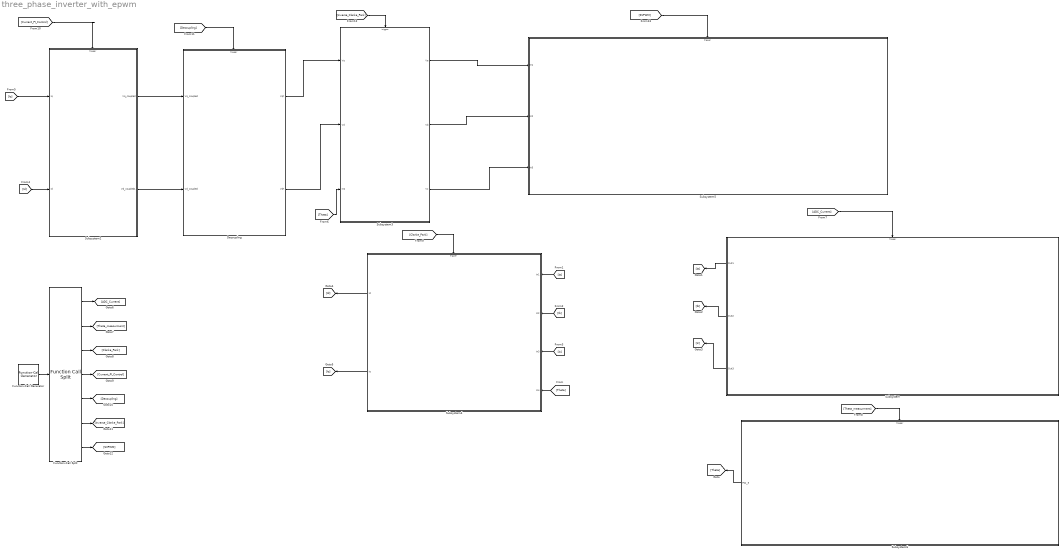
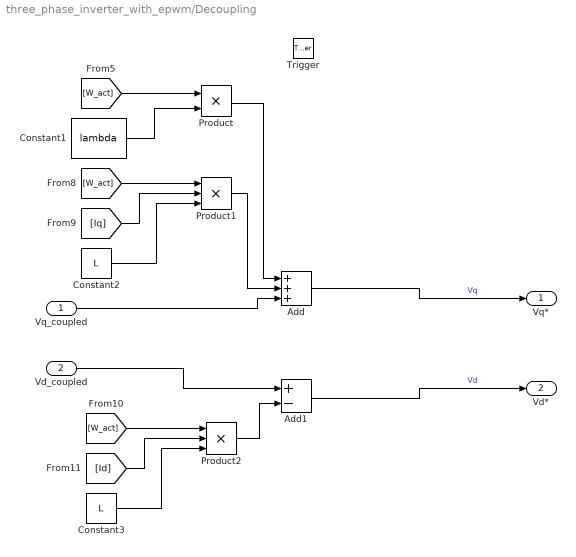
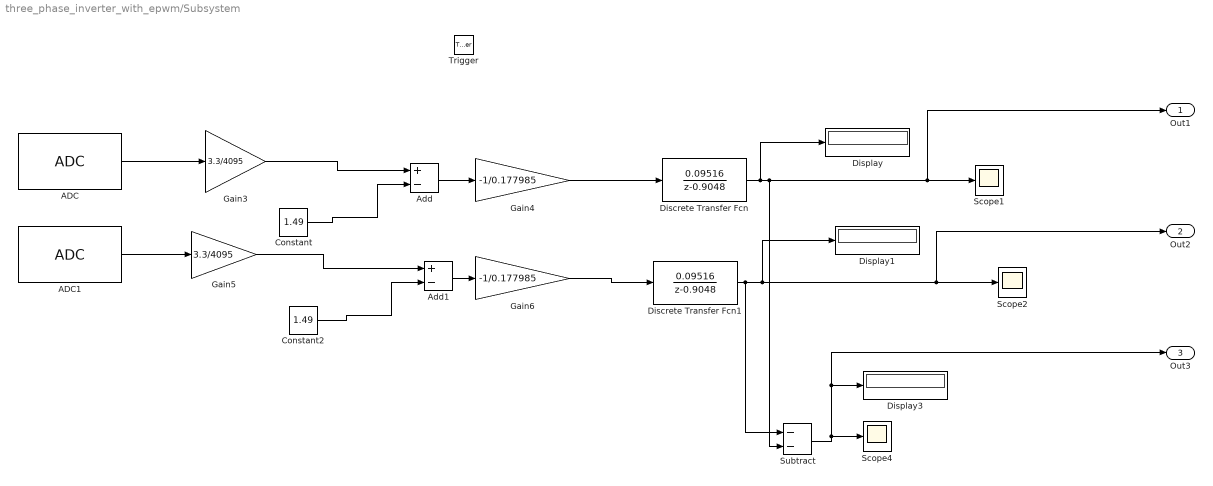
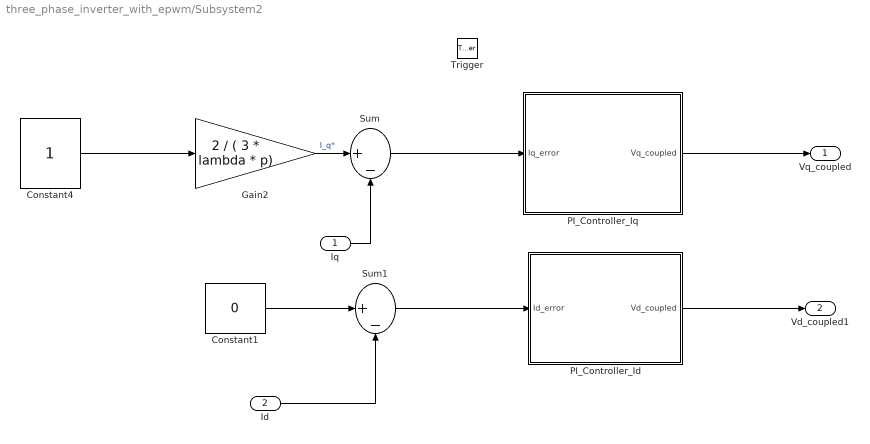
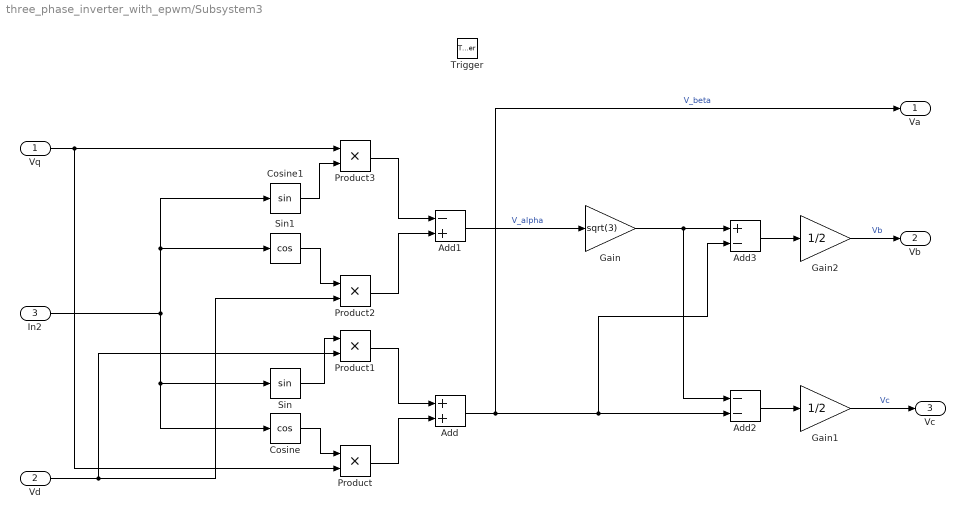
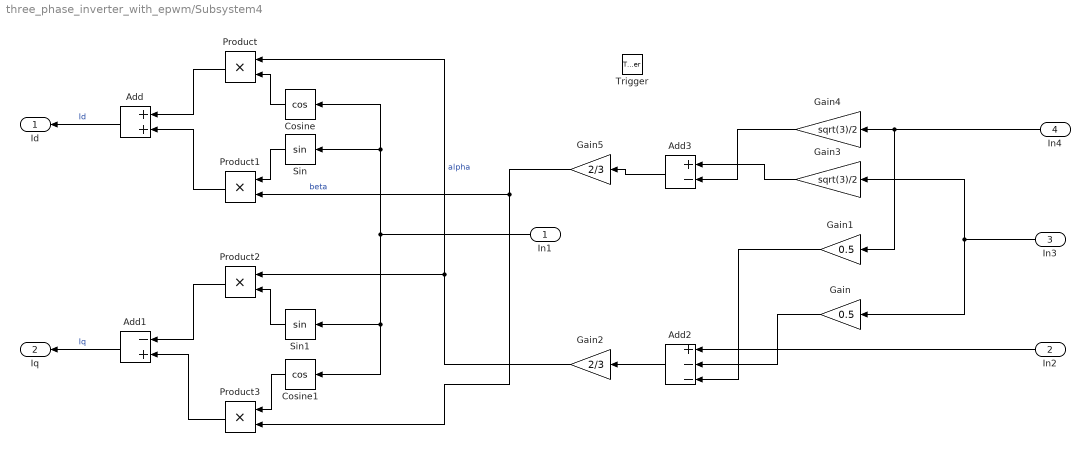
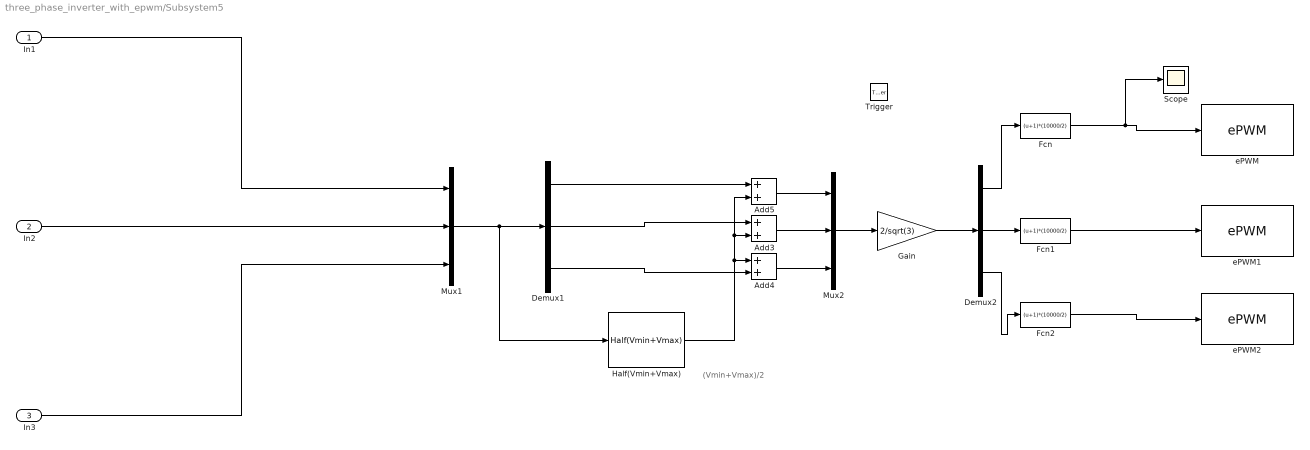
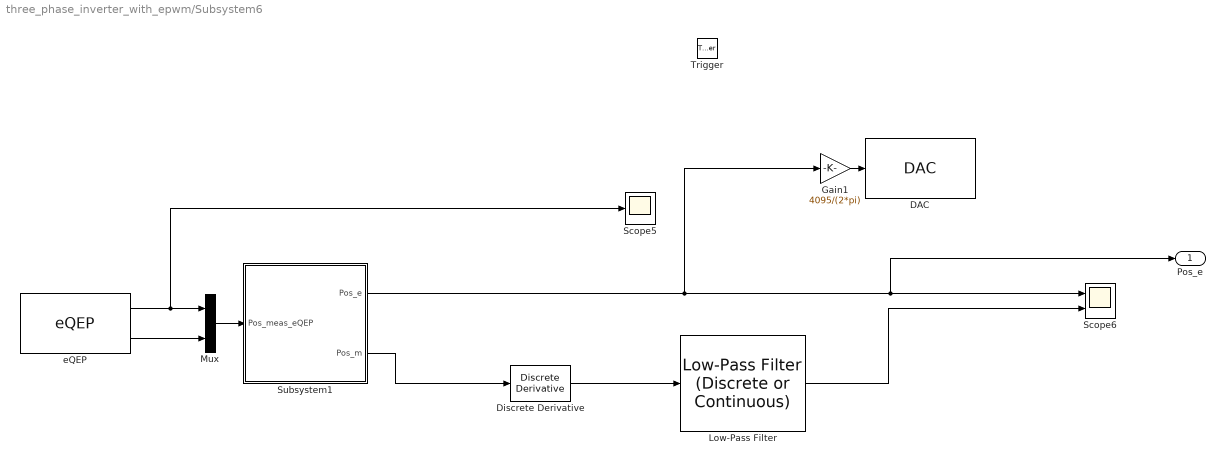
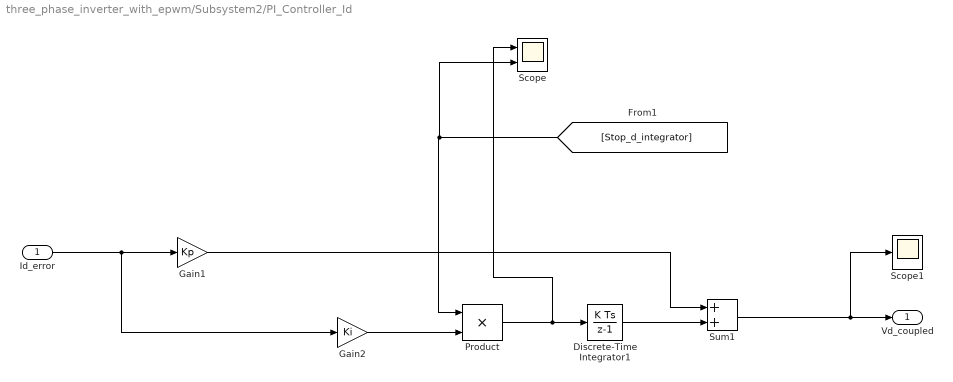
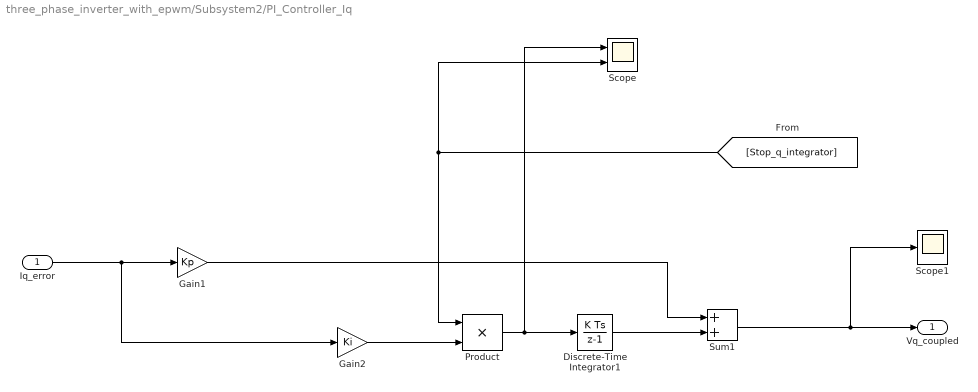
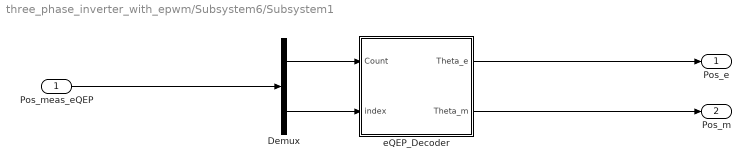
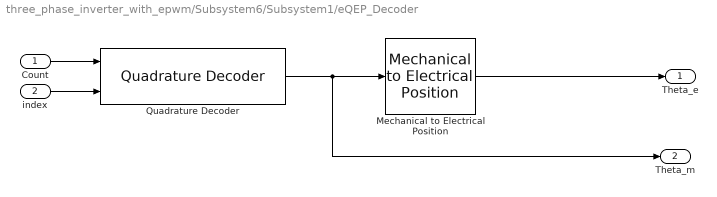
/*
 * File: three_phase_inverter_with_epwm.c
 *
 * Code generated for Simulink model 'three_phase_inverter_with_epwm'.
 *
 * Model version                  : 1.10
 * Simulink Coder version         : 24.1 (R2024a) 19-Nov-2023
 * C/C++ source code generated on : Fri Jun 20 16:25:24 2025
 *
 * Target selection: ert.tlc
 * Embedded hardware selection: Texas Instruments->C2000
 * Code generation objectives: Unspecified
 * Validation result: Not run
 */

#include "three_phase_inverter_with_epwm.h"
#include <math.h>
#include "rt_nonfinite.h"
#include "rtwtypes.h"
#include "three_phase_inverter_with_epwm_private.h"
#include <string.h>

/* Block signals (default storage) */
B_three_phase_inverter_with_e_T three_phase_inverter_with_epw_B;

/* Block states (default storage) */
DW_three_phase_inverter_with__T three_phase_inverter_with_ep_DW;

/* Real-time model */
static RT_MODEL_three_phase_inverter_T three_phase_inverter_with_ep_M_;
RT_MODEL_three_phase_inverter_T *const three_phase_inverter_with_ep_M =
  &three_phase_inverter_with_ep_M_;

#ifndef __TMS320C28XX_CLA__

uint16_T MW_adcBInitFlag = 0;

#endif

#ifndef __TMS320C28XX_CLA__

uint16_T MW_adcCInitFlag = 0;

#endif

/* Model step function */
void three_phase_inverter_with_epwm_step(void)
{
  real_T Subtract;
  real_T rtb_Gain1;
  real_T rtb_Gain2;
  real_T rtb_Gain2_e;
  real_T rtb_Gain2_tmp;
  real_T rtb_Product_o;
  real_T rtb_Switch;
  real_T rtb_alpha;
  uint32_T Subsystem2_ELAPS_T_idx_0;
  uint16_T rtb_Merge;
  uint16_T rtb_Sum3;
  boolean_T tmp;

  /* S-Function (fcgen): '<Root>/Function-Call Generator' incorporates:
   *  SubSystem: '<Root>/Subsystem'
   */
  /* S-Function (c2802xadc): '<S2>/ADC' */
  {
    /*  Internal Reference Voltage : Fixed scale 0 to 3.3 V range.  */
    /*  External Reference Voltage : Allowable ranges of VREFHI(ADCINA0) = 3.3 and VREFLO(tied to ground) = 0  */
    AdcbRegs.ADCSOCFRC1.bit.SOC0 = 1U;

    /* Wait for the period of Sampling window and EOC result to be latched after trigger */
#ifndef __TMS320C28XX_CLA__

    asm(" RPT #75|| NOP");

#endif

#ifdef __TMS320C28XX_CLA__

    real32_T wait_index;
    for (wait_index= 12; wait_index > 0; wait_index--)
      __mnop();

#endif

    three_phase_inverter_with_epw_B.ADC = (AdcbResultRegs.ADCRESULT0);
  }

  /* S-Function (c2802xadc): '<S2>/ADC1' */
  {
    /*  Internal Reference Voltage : Fixed scale 0 to 3.3 V range.  */
    /*  External Reference Voltage : Allowable ranges of VREFHI(ADCINA0) = 3.3 and VREFLO(tied to ground) = 0  */
    AdccRegs.ADCSOCFRC1.bit.SOC0 = 1U;

    /* Wait for the period of Sampling window and EOC result to be latched after trigger */
#ifndef __TMS320C28XX_CLA__

    asm(" RPT #75|| NOP");

#endif

#ifdef __TMS320C28XX_CLA__

    real32_T wait_index;
    for (wait_index= 12; wait_index > 0; wait_index--)
      __mnop();

#endif

    three_phase_inverter_with_epw_B.ADC1 = (AdccResultRegs.ADCRESULT0);
  }

  /* DiscreteTransferFcn: '<S2>/Discrete Transfer Fcn' */
  rtb_Gain2 = three_phase_inverter_with_epw_P.DiscreteTransferFcn_NumCoef *
    three_phase_inverter_with_ep_DW.DiscreteTransferFcn_states;

  /* DiscreteTransferFcn: '<S2>/Discrete Transfer Fcn1' */
  rtb_alpha = three_phase_inverter_with_epw_P.DiscreteTransferFcn1_NumCoef *
    three_phase_inverter_with_ep_DW.DiscreteTransferFcn1_states;

  /* Sum: '<S2>/Subtract' incorporates:
   *  DiscreteTransferFcn: '<S2>/Discrete Transfer Fcn'
   *  DiscreteTransferFcn: '<S2>/Discrete Transfer Fcn1'
   */
  Subtract = (0.0 - rtb_alpha) - rtb_Gain2;

  /* Update for DiscreteTransferFcn: '<S2>/Discrete Transfer Fcn' incorporates:
   *  Constant: '<S2>/Constant'
   *  Gain: '<S2>/Gain3'
   *  Gain: '<S2>/Gain4'
   *  Sum: '<S2>/Add'
   */
  three_phase_inverter_with_ep_DW.DiscreteTransferFcn_states =
    ((three_phase_inverter_with_epw_P.Gain3_Gain *
      three_phase_inverter_with_epw_B.ADC -
      three_phase_inverter_with_epw_P.Constant_Value) *
     three_phase_inverter_with_epw_P.Gain4_Gain -
     three_phase_inverter_with_epw_P.DiscreteTransferFcn_DenCoef[1L] *
     three_phase_inverter_with_ep_DW.DiscreteTransferFcn_states) /
    three_phase_inverter_with_epw_P.DiscreteTransferFcn_DenCoef[0];

  /* Update for DiscreteTransferFcn: '<S2>/Discrete Transfer Fcn1' incorporates:
   *  Constant: '<S2>/Constant2'
   *  Gain: '<S2>/Gain5'
   *  Gain: '<S2>/Gain6'
   *  Sum: '<S2>/Add1'
   */
  three_phase_inverter_with_ep_DW.DiscreteTransferFcn1_states =
    ((three_phase_inverter_with_epw_P.Gain5_Gain *
      three_phase_inverter_with_epw_B.ADC1 -
      three_phase_inverter_with_epw_P.Constant2_Value) *
     three_phase_inverter_with_epw_P.Gain6_Gain -
     three_phase_inverter_with_epw_P.DiscreteTransferFcn1_DenCoef[1L] *
     three_phase_inverter_with_ep_DW.DiscreteTransferFcn1_states) /
    three_phase_inverter_with_epw_P.DiscreteTransferFcn1_DenCoef[0];

  /* S-Function (fcgen): '<Root>/Function-Call Generator' incorporates:
   *  SubSystem: '<Root>/Subsystem6'
   */
  /* S-Function (c280xqep): '<S7>/eQEP' */
  {
    three_phase_inverter_with_epw_B.eQEP_o1 = EQep2Regs.QPOSCNT;/*eQEP Position Counter*/
    three_phase_inverter_with_epw_B.eQEP_o2 = EQep2Regs.QPOSILAT;
         /* The position-counter value is latched into this register on an IEL*/
  }

  /* If: '<S23>/If1' incorporates:
   *  Constant: '<S23>/ResetMode'
   */
  if (three_phase_inverter_with_epw_P.ResetMode_Value > 0) {
    /* Outputs for IfAction SubSystem: '<S23>/PositionNoReset' incorporates:
     *  ActionPort: '<S33>/Action Port'
     */
    /* Sum: '<S33>/Sum3' */
    rtb_Sum3 = three_phase_inverter_with_epw_B.eQEP_o1 -
      three_phase_inverter_with_epw_B.eQEP_o2;

    /* Sum: '<S33>/Sum7' incorporates:
     *  Constant: '<S38>/Constant'
     */
    rtb_Merge = rtb_Sum3 + three_phase_inverter_with_epw_P.Constant_Value_o;

    /* MinMax: '<S33>/MinMax' */
    if (rtb_Sum3 <= rtb_Merge) {
      rtb_Merge = rtb_Sum3;
    }

    /* End of MinMax: '<S33>/MinMax' */
    /* End of Outputs for SubSystem: '<S23>/PositionNoReset' */
  } else {
    /* Outputs for IfAction SubSystem: '<S23>/PositionResetAtIndex' incorporates:
     *  ActionPort: '<S34>/Action Port'
     */
    /* SignalConversion generated from: '<S34>/Count' */
    rtb_Merge = three_phase_inverter_with_epw_B.eQEP_o1;

    /* End of Outputs for SubSystem: '<S23>/PositionResetAtIndex' */
  }

  /* End of If: '<S23>/If1' */

  /* Product: '<S23>/Product' incorporates:
   *  Constant: '<S39>/Constant'
   *  DataTypeConversion: '<S36>/DTC'
   */
  rtb_Product_o = (real_T)rtb_Merge *
    three_phase_inverter_with_epw_P.Constant_Value_j;

  /* Switch: '<S25>/Switch' incorporates:
   *  Constant: '<S22>/ReplaceInport_Offset'
   *  Constant: '<S25>/Constant'
   *  Constant: '<S25>/Constant1'
   */
  if (three_phase_inverter_with_epw_P.Constant_Value_jr >
      three_phase_inverter_with_epw_P.Switch_Threshold) {
    rtb_Switch = three_phase_inverter_with_epw_P.Constant1_Value;
  } else {
    rtb_Switch = three_phase_inverter_with_epw_P.ReplaceInport_Offset_Value;
  }

  /* End of Switch: '<S25>/Switch' */

  /* If: '<S26>/If' incorporates:
   *  Constant: '<S28>/Constant'
   *  Gain: '<S31>/Number of pole pairs'
   *  Sum: '<S28>/Add'
   *  Sum: '<S29>/Add'
   */
  if (rtb_Product_o <= rtb_Switch) {
    /* Outputs for IfAction SubSystem: '<S26>/If Action Subsystem' incorporates:
     *  ActionPort: '<S28>/Action Port'
     */
    rtb_Product_o = (rtb_Product_o +
                     three_phase_inverter_with_epw_P.Constant_Value_l) -
      rtb_Switch;

    /* End of Outputs for SubSystem: '<S26>/If Action Subsystem' */
  } else {
    /* Outputs for IfAction SubSystem: '<S26>/If Action Subsystem1' incorporates:
     *  ActionPort: '<S29>/Action Port'
     */
    rtb_Product_o -= rtb_Switch;

    /* End of Outputs for SubSystem: '<S26>/If Action Subsystem1' */
  }

  rtb_Product_o *=
    three_phase_inverter_with_epw_P.MechanicaltoElectricalPosition_;

  /* End of If: '<S26>/If' */

  /* Sum: '<S27>/Add' incorporates:
   *  Gain: '<S27>/Multiply'
   *  Gain: '<S27>/Multiply1'
   *  Rounding: '<S27>/Floor'
   */
  rtb_Product_o -= floor(three_phase_inverter_with_epw_P.Multiply_Gain *
    rtb_Product_o) * three_phase_inverter_with_epw_P.Multiply1_Gain;

  /* MATLABSystem: '<S7>/DAC' incorporates:
   *  Gain: '<S7>/Gain1'
   */
  MW_C2000DACSat(0U, three_phase_inverter_with_epw_P.Gain1_Gain * rtb_Product_o);

  /* S-Function (fcgen): '<Root>/Function-Call Generator' incorporates:
   *  SubSystem: '<Root>/Subsystem4'
   */
  /* S-Function (fcgen): '<Root>/Function-Call Generator' incorporates:
   *  SubSystem: '<Root>/Subsystem'
   */
  /* Gain: '<S5>/Gain2' incorporates:
   *  DiscreteTransferFcn: '<S2>/Discrete Transfer Fcn1'
   *  Gain: '<S5>/Gain'
   *  Gain: '<S5>/Gain1'
   *  Sum: '<S5>/Add2'
   */
  rtb_alpha = ((rtb_alpha - three_phase_inverter_with_epw_P.Gain_Gain * Subtract)
               - three_phase_inverter_with_epw_P.Gain1_Gain_d * rtb_Product_o) *
    three_phase_inverter_with_epw_P.Gain2_Gain;

  /* Gain: '<S5>/Gain5' incorporates:
   *  Gain: '<S5>/Gain3'
   *  Gain: '<S5>/Gain4'
   *  Sum: '<S5>/Add3'
   */
  Subtract = (three_phase_inverter_with_epw_P.Gain3_Gain_b * Subtract -
              three_phase_inverter_with_epw_P.Gain4_Gain_e * rtb_Product_o) *
    three_phase_inverter_with_epw_P.Gain5_Gain_k;

  /* S-Function (fcgen): '<Root>/Function-Call Generator' incorporates:
   *  SubSystem: '<Root>/Subsystem2'
   */
  if (three_phase_inverter_with_ep_DW.Subsystem2_RESET_ELAPS_T) {
    Subsystem2_ELAPS_T_idx_0 = 0UL;
  } else {
    Subsystem2_ELAPS_T_idx_0 = three_phase_inverter_with_ep_M->Timing.clockTick0
      - three_phase_inverter_with_ep_DW.Subsystem2_PREV_T[0];
  }

  three_phase_inverter_with_ep_DW.Subsystem2_PREV_T[0L] =
    three_phase_inverter_with_ep_M->Timing.clockTick0;
  three_phase_inverter_with_ep_DW.Subsystem2_PREV_T[1L] =
    three_phase_inverter_with_ep_M->Timing.clockTickH0;
  three_phase_inverter_with_ep_DW.Subsystem2_RESET_ELAPS_T = false;

  /* S-Function (fcgen): '<Root>/Function-Call Generator' incorporates:
   *  SubSystem: '<Root>/Subsystem4'
   */
  /* S-Function (fcgen): '<Root>/Function-Call Generator' incorporates:
   *  SubSystem: '<Root>/Subsystem'
   */
  /* Trigonometry: '<S5>/Cosine1' incorporates:
   *  DiscreteTransferFcn: '<S2>/Discrete Transfer Fcn'
   *  Trigonometry: '<S5>/Cosine'
   */
  rtb_Switch = cos(rtb_Gain2);

  /* Trigonometry: '<S5>/Sin1' incorporates:
   *  DiscreteTransferFcn: '<S2>/Discrete Transfer Fcn'
   *  Trigonometry: '<S5>/Sin'
   */
  rtb_Gain2_tmp = sin(rtb_Gain2);

  /* S-Function (fcgen): '<Root>/Function-Call Generator' incorporates:
   *  SubSystem: '<Root>/Subsystem2'
   */
  /* Sum: '<S3>/Sum' incorporates:
   *  Constant: '<S3>/Constant4'
   *  Gain: '<S3>/Gain2'
   *  Product: '<S5>/Product2'
   *  Product: '<S5>/Product3'
   *  Sum: '<S5>/Add1'
   *  Trigonometry: '<S5>/Cosine1'
   *  Trigonometry: '<S5>/Sin1'
   */
  rtb_Gain2 = 2.0 / (3.0 * three_phase_inverter_with_epw_P.lambda *
                     three_phase_inverter_with_epw_P.p) *
    three_phase_inverter_with_epw_P.Constant4_Value - (rtb_Switch * Subtract -
    rtb_alpha * rtb_Gain2_tmp);

  /* Gain: '<S9>/Gain1' */
  rtb_Gain1 = three_phase_inverter_with_epw_P.Kp * rtb_Gain2;

  /* DiscreteIntegrator: '<S9>/Discrete-Time Integrator1' */
  if (three_phase_inverter_with_ep_DW.DiscreteTimeIntegrator1_SYSTEM_ == 0U) {
    /* DiscreteIntegrator: '<S9>/Discrete-Time Integrator1' */
    three_phase_inverter_with_ep_DW.DiscreteTimeIntegrator1_DSTATE +=
      three_phase_inverter_with_epw_P.DiscreteTimeIntegrator1_gainval * (real_T)
      Subsystem2_ELAPS_T_idx_0 *
      three_phase_inverter_with_ep_DW.DiscreteTimeIntegrator1_PREV_U;
  }

  /* End of DiscreteIntegrator: '<S9>/Discrete-Time Integrator1' */

  /* Gain: '<S9>/Gain2' */
  rtb_Gain2_e = three_phase_inverter_with_epw_P.Ki * rtb_Gain2;

  /* End of Outputs for S-Function (fcgen): '<Root>/Function-Call Generator' */

  /* S-Function (fcgen): '<Root>/Function-Call Generator' incorporates:
   *  SubSystem: '<Root>/Subsystem4'
   */
  /* Sum: '<S3>/Sum1' incorporates:
   *  Constant: '<S3>/Constant1'
   *  Product: '<S5>/Product'
   *  Product: '<S5>/Product1'
   *  Sum: '<S5>/Add'
   */
  rtb_Gain2 = three_phase_inverter_with_epw_P.Constant1_Value_o - (rtb_alpha *
    rtb_Switch + rtb_Gain2_tmp * Subtract);

  /* DiscreteIntegrator: '<S8>/Discrete-Time Integrator1' */
  if (three_phase_inverter_with_ep_DW.DiscreteTimeIntegrator1_SYSTE_l == 0U) {
    /* DiscreteIntegrator: '<S8>/Discrete-Time Integrator1' */
    three_phase_inverter_with_ep_DW.DiscreteTimeIntegrator1_DSTAT_o +=
      three_phase_inverter_with_epw_P.DiscreteTimeIntegrator1_gainv_l * (real_T)
      Subsystem2_ELAPS_T_idx_0 *
      three_phase_inverter_with_ep_DW.DiscreteTimeIntegrator1_PREV__g;
  }

  /* End of DiscreteIntegrator: '<S8>/Discrete-Time Integrator1' */

  /* Update for DiscreteIntegrator: '<S9>/Discrete-Time Integrator1' incorporates:
   *  Product: '<S9>/Product'
   */
  three_phase_inverter_with_ep_DW.DiscreteTimeIntegrator1_SYSTEM_ = 0U;
  three_phase_inverter_with_ep_DW.DiscreteTimeIntegrator1_PREV_U = 0.0 *
    rtb_Gain2_e;

  /* Update for DiscreteIntegrator: '<S8>/Discrete-Time Integrator1' incorporates:
   *  Gain: '<S8>/Gain2'
   *  Product: '<S8>/Product'
   */
  three_phase_inverter_with_ep_DW.DiscreteTimeIntegrator1_SYSTE_l = 0U;
  three_phase_inverter_with_ep_DW.DiscreteTimeIntegrator1_PREV__g =
    three_phase_inverter_with_epw_P.Ki * rtb_Gain2 * 0.0;

  /* End of Outputs for S-Function (fcgen): '<Root>/Function-Call Generator' */

  /* S-Function (fcgen): '<Root>/Function-Call Generator' incorporates:
   *  SubSystem: '<Root>/Decoupling'
   */
  /* Sum: '<S1>/Add' incorporates:
   *  Constant: '<S1>/Constant1'
   *  Constant: '<S1>/Constant2'
   *  Product: '<S1>/Product'
   *  Product: '<S1>/Product1'
   *  Sum: '<S9>/Sum1'
   */
  rtb_alpha = (0.0 * three_phase_inverter_with_epw_P.lambda + 0.0 *
               three_phase_inverter_with_epw_P.L) + (rtb_Gain1 +
    three_phase_inverter_with_ep_DW.DiscreteTimeIntegrator1_DSTATE);

  /* Sum: '<S1>/Add1' incorporates:
   *  Constant: '<S1>/Constant3'
   *  Gain: '<S8>/Gain1'
   *  Product: '<S1>/Product2'
   *  Sum: '<S8>/Sum1'
   */
  rtb_Gain2 = (three_phase_inverter_with_epw_P.Kp * rtb_Gain2 +
               three_phase_inverter_with_ep_DW.DiscreteTimeIntegrator1_DSTAT_o)
    - 0.0 * three_phase_inverter_with_epw_P.L;

  /* S-Function (fcgen): '<Root>/Function-Call Generator' incorporates:
   *  SubSystem: '<Root>/Subsystem3'
   */
  /* Trigonometry: '<S4>/Cosine' incorporates:
   *  Trigonometry: '<S4>/Sin1'
   */
  Subtract = cos(rtb_Product_o);

  /* Trigonometry: '<S4>/Sin' incorporates:
   *  Trigonometry: '<S4>/Cosine1'
   */
  rtb_Switch = sin(rtb_Product_o);

  /* Sum: '<S4>/Add' incorporates:
   *  Product: '<S4>/Product'
   *  Product: '<S4>/Product1'
   *  Trigonometry: '<S4>/Cosine'
   *  Trigonometry: '<S4>/Sin'
   */
  rtb_Product_o = rtb_Switch * rtb_Gain2 + Subtract * rtb_alpha;

  /* Gain: '<S4>/Gain' incorporates:
   *  Product: '<S4>/Product2'
   *  Product: '<S4>/Product3'
   *  Sum: '<S4>/Add1'
   */
  rtb_alpha = (Subtract * rtb_Gain2 - rtb_alpha * rtb_Switch) *
    three_phase_inverter_with_epw_P.Gain_Gain_g;

  /* Gain: '<S4>/Gain1' incorporates:
   *  Sum: '<S4>/Add2'
   */
  rtb_Gain2 = ((0.0 - rtb_alpha) - rtb_Product_o) *
    three_phase_inverter_with_epw_P.Gain1_Gain_e;

  /* Gain: '<S4>/Gain2' incorporates:
   *  Sum: '<S4>/Add3'
   */
  rtb_alpha = (rtb_alpha - rtb_Product_o) *
    three_phase_inverter_with_epw_P.Gain2_Gain_n;

  /* S-Function (fcgen): '<Root>/Function-Call Generator' incorporates:
   *  SubSystem: '<Root>/Subsystem5'
   */
  /* MinMax: '<S10>/Max' incorporates:
   *  MinMax: '<S10>/Min'
   */
  tmp = rtIsNaN(rtb_alpha);
  if ((rtb_Product_o >= rtb_alpha) || tmp) {
    Subtract = rtb_Product_o;
  } else {
    Subtract = rtb_alpha;
  }

  /* MinMax: '<S10>/Min' */
  if ((rtb_Product_o <= rtb_alpha) || tmp) {
    rtb_Switch = rtb_Product_o;
  } else {
    rtb_Switch = rtb_alpha;
  }

  /* MinMax: '<S10>/Max' incorporates:
   *  MinMax: '<S10>/Min'
   */
  tmp = !rtIsNaN(rtb_Gain2);
  if ((!(Subtract >= rtb_Gain2)) && tmp) {
    Subtract = rtb_Gain2;
  }

  /* MinMax: '<S10>/Min' */
  if ((!(rtb_Switch <= rtb_Gain2)) && tmp) {
    rtb_Switch = rtb_Gain2;
  }

  /* Gain: '<S10>/one_by_two' incorporates:
   *  MinMax: '<S10>/Max'
   *  MinMax: '<S10>/Min'
   *  Sum: '<S10>/Add'
   */
  Subtract = (Subtract + rtb_Switch) *
    three_phase_inverter_with_epw_P.one_by_two_Gain;

  /* Sum: '<S6>/Add3' */
  rtb_Switch = rtb_alpha + Subtract;

  /* Fcn: '<S6>/Fcn' incorporates:
   *  Gain: '<S6>/Gain'
   *  Sum: '<S6>/Add5'
   */
  rtb_alpha = ((rtb_Product_o + Subtract) *
               three_phase_inverter_with_epw_P.Gain_Gain_a + 1.0) * 5000.0;

  /* S-Function (c2802xpwm): '<S6>/ePWM' */

  /*-- Update CMPA value for ePWM1 --*/
  {
    EPwm1Regs.CMPA.bit.CMPA = (uint16_T)(rtb_alpha);
  }

  /* Fcn: '<S6>/Fcn1' incorporates:
   *  Gain: '<S6>/Gain'
   */
  rtb_alpha = (three_phase_inverter_with_epw_P.Gain_Gain_a * rtb_Switch + 1.0) *
    5000.0;

  /* S-Function (c2802xpwm): '<S6>/ePWM1' */

  /*-- Update CMPA value for ePWM2 --*/
  {
    EPwm2Regs.CMPA.bit.CMPA = (uint16_T)(rtb_alpha);
  }

  /* Fcn: '<S6>/Fcn2' incorporates:
   *  Gain: '<S6>/Gain'
   *  Sum: '<S6>/Add4'
   */
  rtb_alpha = ((Subtract + rtb_Gain2) *
               three_phase_inverter_with_epw_P.Gain_Gain_a + 1.0) * 5000.0;

  /* S-Function (c2802xpwm): '<S6>/ePWM2' */

  /*-- Update CMPA value for ePWM3 --*/
  {
    EPwm3Regs.CMPA.bit.CMPA = (uint16_T)(rtb_alpha);
  }

  /* End of Outputs for S-Function (fcgen): '<Root>/Function-Call Generator' */

  /* Update absolute time for base rate */
  /* The "clockTick0" counts the number of times the code of this task has
   * been executed. The resolution of this integer timer is 1.0E-5, which is the step size
   * of the task. Size of "clockTick0" ensures timer will not overflow during the
   * application lifespan selected.
   * Timer of this task consists of two 32 bit unsigned integers.
   * The two integers represent the low bits Timing.clockTick0 and the high bits
   * Timing.clockTickH0. When the low bit overflows to 0, the high bits increment.
   */
  three_phase_inverter_with_ep_M->Timing.clockTick0++;
  if (!three_phase_inverter_with_ep_M->Timing.clockTick0) {
    three_phase_inverter_with_ep_M->Timing.clockTickH0++;
  }
}
